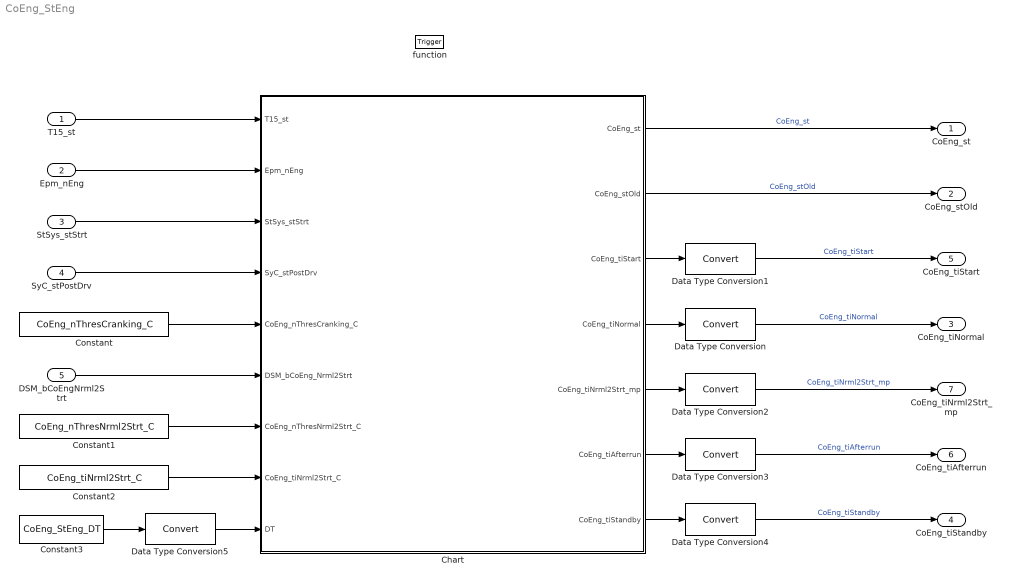
== stateflow chart CoEng_StEng/Chart ==
  state STANDBY
    entry:
    CoEng_st=EngState_conv.COENG_STANDBY;
    CoEng_stOld=EngState_conv.COENG_STANDBY;
    during:
    CoEng_tiStandby=CoEng_tiStandby+DT;
  state READY
    entry:
    CoEng_stOld=CoEng_st;
    CoEng_st=EngState_conv.COENG_READY;
    during:
    CoEng_tiStart=CoEng_tiStart+DT;
  state FINISH
    entry:
    CoEng_stOld=CoEng_st;
    CoEng_st=EngState_conv.COENG_FINISH;
    during:
    CoEng_tiAfterrun=CoEng_tiAfterrun+DT;
  state STOPPING
    entry:
    CoEng_stOld=CoEng_st;
    CoEng_st=EngState_conv.COENG_STOPPING;
    during:
    CoEng_tiAfterrun=CoEng_tiAfterrun+DT;
  state CRANKING
    entry:
    CoEng_stOld=CoEng_st;
    CoEng_st=EngState_conv.COENG_CRANKING;
    during:
    CoEng_tiStart=CoEng_tiStart+DT;
  state RUNNING
    entry:
    CoEng_stOld=CoEng_st;
    CoEng_st=EngState_conv.COENG_RUNNING;
    CoEng_tiNormal=DT;
    during:
    CoEng_tiNormal=CoEng_tiNormal+DT;
    state TEMP2
      during:CoEng_tiNrml2Strt_mp = CoEng_tiNrml2Strt_mp + DT;
    state TEMP
    state TEMP3
      entry:CoEng_tiNrml2Strt_mp=uint32(0);
    (default) -> TEMP
    TEMP3 -> TEMP2 : [Epm_nEng<CoEng_nThresNrml2Strt_C]
    TEMP2 -> TEMP3 : [Epm_nEng>CoEng_nThresNrml2Strt_C]
    TEMP -> TEMP3
  (default) -> STANDBY
  STANDBY -> READY : [T15_st==1]
  FINISH -> STANDBY [order 1] : [SyC_stPostDrv==8]
  FINISH -> READY [order 2] : [T15_st==1]
  STOPPING -> READY [order 1] : [T15_st==1]
  RUNNING -> READY [order 1] : [(Epm_nEng<CoEng_nThresNrml2Strt_C)&&... (CoEng_tiNrml2Strt_mp>CoEng_tiNrml2Strt_C)&&... (DSM_bCoEng_Nrml2Strt==1)]
  READY -> STOPPING [order 2] : [T15_st==0]
  CRANKING -> READY [order 1] : [Epm_nEng==int16(0)]
  READY -> CRANKING [order 1] : [Epm_nEng>CoEng_nThresCranking_C]
  STOPPING -> FINISH [order 2] : [Epm_nEng==int16(0)]
  CRANKING -> STOPPING [order 3] : [T15_st==0]
  CRANKING -> RUNNING [order 2] : [StSys_stStrt==0]
  RUNNING -> STOPPING [order 2] : [T15_st==0]
  data: T15_st input; Epm_nEng input [0..12799]; StSys_stStrt input; SyC_stPostDrv input; CoEng_st output; CoEng_stOld output; CoEng_nThresCranking_C input [0..12799]; DSM_bCoEng_Nrml2Strt input [0..1]; CoEng_nThresNrml2Strt_C input [0..12799]; CoEng_tiNrml2Strt_C input [0..65535]; DT input uint32; CoEng_tiStart output uint32 =uint32(0); CoEng_tiNormal output uint32 =uint32(0); CoEng_tiNrml2Strt_mp output uint32 [0..65535] =uint32(0); CoEng_tiAfterrun output uint32 =uint32(0); CoEng_tiStandby output uint32 =uint32(0)

/*
 * File: CoEng_StEng.c
 *
 * Code generated for Simulink model 'CoEng_StEng'.
 *
 * Model version                  : 1.61
 * Simulink Coder version         : 8.11 (R2016b) 25-Aug-2016
 * C/C++ source code generated on : Wed Jul 01 14:46:16 2020
 *
 * Target selection: ert.tlc
 * Embedded hardware selection: Freescale->32-bit PowerPC
 * Code generation objective: Execution efficiency
 * Validation result: Not run
 */

#include "CoEng_StEng.h"
#include "CoEng_StEng_private.h"

/* Named constants for Chart: '<Root>/Chart' */
#define CoEng_StEng_IN_CRANKING        ((uint8_T)1U)
#define CoEng_StEng_IN_FINISH          ((uint8_T)2U)
#define CoEng_StEng_IN_NO_ACTIVE_CHILD ((uint8_T)0U)
#define CoEng_StEng_IN_READY           ((uint8_T)3U)
#define CoEng_StEng_IN_RUNNING         ((uint8_T)4U)
#define CoEng_StEng_IN_STANDBY         ((uint8_T)5U)
#define CoEng_StEng_IN_STOPPING        ((uint8_T)6U)
#define CoEng_StEng_IN_TEMP            ((uint8_T)1U)
#define CoEng_StEng_IN_TEMP2           ((uint8_T)2U)
#define CoEng_StEng_IN_TEMP3           ((uint8_T)3U)

/* Exported block signals */
EngTime_ms CoEng_tiNormal;             /* '<Root>/Data Type Conversion' */
EngTime_ms CoEng_tiStandby;            /* '<Root>/Data Type Conversion4' */
EngTime_ms CoEng_tiStart;              /* '<Root>/Data Type Conversion1' */
EngTime_ms CoEng_tiAfterrun;           /* '<Root>/Data Type Conversion3' */
EngTime_ms CoEng_tiNrml2Strt_mp;       /* '<Root>/Data Type Conversion2' */
EngState_conv CoEng_st;                /* '<Root>/Chart' */
EngState_conv CoEng_stOld;             /* '<Root>/Chart' */

/* Block signals (auto storage) */
B_CoEng_StEng_T CoEng_StEng_B;

/* Block states (auto storage) */
DW_CoEng_StEng_T CoEng_StEng_DW;

/* External inputs (root inport signals with auto storage) */
ExtU_CoEng_StEng_T CoEng_StEng_U;
boolean_T uMultiWordGt(const uint32_T u1[], const uint32_T u2[], int32_T n)
{
  return uMultiWordCmp(u1, u2, n) > 0;
}

int32_T uMultiWordCmp(const uint32_T u1[], const uint32_T u2[], int32_T n)
{
  int32_T y;
  uint32_T u1i;
  uint32_T u2i;
  int32_T i;
  y = 0;
  i = n;
  while ((y == 0) && (i > 0)) {
    i--;
    u1i = u1[i];
    u2i = u2[i];
    if (u1i != u2i) {
      y = u1i > u2i ? 1 : -1;
    }
  }

  return y;
}

void MultiWordUnsignedWrap(const uint32_T u1[], int32_T n1, uint32_T n2,
  uint32_T y[])
{
  int32_T n1m1;
  int32_T i;
  n1m1 = n1 - 1;
  for (i = 0; i < n1m1; i++) {
    y[i] = u1[i];
  }

  y[n1m1] = ((1U << (32U - n2)) - 1U) & u1[n1m1];
}

void uMultiWord2MultiWord(const uint32_T u1[], int32_T n1, uint32_T y[], int32_T
  n)
{
  int32_T nm;
  int32_T i;
  nm = n1 < n ? n1 : n;
  for (i = 0; i < nm; i++) {
    y[i] = u1[i];
  }

  if (n > n1) {
    for (i = nm; i < n; i++) {
      y[i] = 0U;
    }
  }
}

void uMultiWordMul(const uint32_T u1[], int32_T n1, const uint32_T u2[], int32_T
                   n2, uint32_T y[], int32_T n)
{
  int32_T i;
  int32_T j;
  int32_T k;
  int32_T nj;
  uint32_T u1i;
  uint32_T yk;
  uint32_T a1;
  uint32_T a0;
  uint32_T b1;
  uint32_T w10;
  uint32_T w01;
  uint32_T cb;

  /* Initialize output to zero */
  for (k = 0; k < n; k++) {
    y[k] = 0U;
  }

  for (i = 0; i < n1; i++) {
    cb = 0U;
    u1i = u1[i];
    a1 = u1i >> 16U;
    a0 = u1i & 65535U;
    k = n - i;
    nj = n2 <= k ? n2 : k;
    k = i;
    for (j = 0; j < nj; j++) {
      yk = y[k];
      u1i = u2[j];
      b1 = u1i >> 16U;
      u1i &= 65535U;
      w10 = a1 * u1i;
      w01 = a0 * b1;
      yk += cb;
      cb = (uint32_T)(yk < cb);
      u1i *= a0;
      yk += u1i;
      cb += (yk < u1i);
      u1i = w10 << 16U;
      yk += u1i;
      cb += (yk < u1i);
      u1i = w01 << 16U;
      yk += u1i;
      cb += (yk < u1i);
      y[k] = yk;
      cb += w10 >> 16U;
      cb += w01 >> 16U;
      cb += a1 * b1;
      k++;
    }

    if (k < n) {
      y[k] = cb;
    }
  }
}

void uMultiWordShl(const uint32_T u1[], int32_T n1, uint32_T n2, uint32_T y[],
                   int32_T n)
{
  int32_T nb;
  int32_T nc;
  int32_T i;
  uint32_T ys;
  uint32_T u1i;
  uint32_T yi;
  uint32_T nr;
  uint32_T nl;
  nb = (int32_T)(n2 >> 5);
  ys = (u1[n1 - 1] & 2147483648U) != 0U ? MAX_uint32_T : 0U;
  nc = nb > n ? n : nb;
  u1i = 0U;
  for (i = 0; i < nc; i++) {
    y[i] = 0U;
  }

  if (nb < n) {
    nl = n2 - ((uint32_T)nb << 5);
    nb += n1;
    if (nb > n) {
      nb = n;
    }

    nb -= i;
    if (nl > 0U) {
      nr = 32U - nl;
      for (nc = 0; nc < nb; nc++) {
        yi = u1i >> nr;
        u1i = u1[nc];
        y[i] = u1i << nl | yi;
        i++;
      }

      if (i < n) {
        y[i] = u1i >> nr | ys << nl;
        i++;
      }
    } else {
      for (nc = 0; nc < nb; nc++) {
        y[i] = u1[nc];
        i++;
      }
    }
  }

  while (i < n) {
    y[i] = ys;
    i++;
  }
}

void uLong2MultiWord(uint32_T u, uint32_T y[], int32_T n)
{
  int32_T i;
  y[0] = u;
  for (i = 1; i < n; i++) {
    y[i] = 0U;
  }
}

void mul_wide_u32(uint32_T in0, uint32_T in1, uint32_T *ptrOutBitsHi, uint32_T
                  *ptrOutBitsLo)
{
  uint32_T outBitsLo;
  uint32_T in0Lo;
  uint32_T in0Hi;
  uint32_T in1Lo;
  uint32_T in1Hi;
  uint32_T productHiLo;
  uint32_T productLoHi;
  in0Hi = in0 >> 16U;
  in0Lo = in0 & 65535U;
  in1Hi = in1 >> 16U;
  in1Lo = in1 & 65535U;
  productHiLo = in0Hi * in1Lo;
  productLoHi = in0Lo * in1Hi;
  in0Lo *= in1Lo;
  in1Lo = 0U;
  outBitsLo = (productLoHi << 16U) + in0Lo;
  if (outBitsLo < in0Lo) {
    in1Lo = 1U;
  }

  in0Lo = outBitsLo;
  outBitsLo += productHiLo << 16U;
  if (outBitsLo < in0Lo) {
    in1Lo++;
  }

  *ptrOutBitsHi = (((productLoHi >> 16U) + (productHiLo >> 16U)) + in0Hi * in1Hi)
    + in1Lo;
  *ptrOutBitsLo = outBitsLo;
}

uint32_T mul_u32_hiSR(uint32_T a, uint32_T b, uint32_T aShift)
{
  uint32_T u32_chi;
  uint32_T u32_clo;
  mul_wide_u32(a, b, &u32_chi, &u32_clo);
  return u32_chi >> aShift;
}

/* Model step function */
void CoEng_StEng_step(void)
{
  uint32_T qY;
  uint96m_T tmp;
  uint96m_T tmp_0;
  uint64m_T tmp_1;
  uint96m_T tmp_2;
  uint96m_T tmp_3;

  /* Chart: '<Root>/Chart' incorporates:
   *  Constant: '<Root>/Constant'
   *  Constant: '<Root>/Constant1'
   *  Constant: '<Root>/Constant2'
   *  Constant: '<Root>/Constant3'
   *  Inport: '<Root>/DSM_bCoEngNrml2Strt'
   *  Inport: '<Root>/Epm_nEng'
   *  Inport: '<Root>/StSys_stStrt'
   *  Inport: '<Root>/SyC_stPostDrv'
   *  Inport: '<Root>/T15_st'
   */
  /* Gateway: Chart */
  /* During: Chart */
  if (CoEng_StEng_DW.is_active_c3_CoEng_StEng == 0U) {
    /* Entry: Chart */
    CoEng_StEng_DW.is_active_c3_CoEng_StEng = 1U;

    /* Entry Internal: Chart */
    /* Transition: '<S1>:2' */
    CoEng_StEng_DW.is_c3_CoEng_StEng = CoEng_StEng_IN_STANDBY;

    /* Entry 'STANDBY': '<S1>:1' */
    CoEng_st = COENG_STANDBY;
    CoEng_stOld = COENG_STANDBY;
  } else {
    switch (CoEng_StEng_DW.is_c3_CoEng_StEng) {
     case CoEng_StEng_IN_CRANKING:
      /* During 'CRANKING': '<S1>:5' */
      if (CoEng_StEng_U.Epm_nEng == 0) {
        /* Transition: '<S1>:11' */
        CoEng_StEng_DW.is_c3_CoEng_StEng = CoEng_StEng_IN_READY;

        /* Entry 'READY': '<S1>:4' */
        CoEng_stOld = CoEng_st;
        CoEng_st = COENG_READY;
      } else if (CoEng_StEng_U.StSys_stStrt == 0) {
        /* Transition: '<S1>:12' */
        CoEng_StEng_DW.is_c3_CoEng_StEng = CoEng_StEng_IN_RUNNING;

        /* Entry 'RUNNING': '<S1>:6' */
        CoEng_stOld = CoEng_st;
        CoEng_st = COENG_RUNNING;
        CoEng_StEng_B.CoEng_tiNormal_h = 10U;

        /* Entry Internal 'RUNNING': '<S1>:6' */
        /* Transition: '<S1>:14' */
        CoEng_StEng_DW.is_RUNNING = CoEng_StEng_IN_TEMP;
      } else if (CoEng_StEng_U.T15_st == 0) {
        /* Transition: '<S1>:23' */
        CoEng_StEng_DW.is_c3_CoEng_StEng = CoEng_StEng_IN_STOPPING;

        /* Entry 'STOPPING': '<S1>:7' */
        CoEng_stOld = CoEng_st;
        CoEng_st = COENG_STOPPING;
      } else {
        qY = CoEng_StEng_B.CoEng_tiStart_k + 10U;
        if (qY < CoEng_StEng_B.CoEng_tiStart_k) {
          qY = MAX_uint32_T;
        }

        CoEng_StEng_B.CoEng_tiStart_k = qY;
      }
      break;

     case CoEng_StEng_IN_FINISH:
      /* During 'FINISH': '<S1>:3' */
      if (CoEng_StEng_U.SyC_stPostDrv == 8) {
        /* Transition: '<S1>:27' */
        CoEng_StEng_DW.is_c3_CoEng_StEng = CoEng_StEng_IN_STANDBY;

        /* Entry 'STANDBY': '<S1>:1' */
        CoEng_st = COENG_STANDBY;
        CoEng_stOld = COENG_STANDBY;
      } else if (CoEng_StEng_U.T15_st == 1) {
        /* Transition: '<S1>:29' */
        CoEng_StEng_DW.is_c3_CoEng_StEng = CoEng_StEng_IN_READY;

        /* Entry 'READY': '<S1>:4' */
        CoEng_stOld = CoEng_st;
        CoEng_st = COENG_READY;
      } else {
        qY = CoEng_StEng_B.CoEng_tiAfterrun_g + 10U;
        if (qY < CoEng_StEng_B.CoEng_tiAfterrun_g) {
          qY = MAX_uint32_T;
        }

        CoEng_StEng_B.CoEng_tiAfterrun_g = qY;
      }
      break;

     case CoEng_StEng_IN_READY:
      /* During 'READY': '<S1>:4' */
      if (CoEng_StEng_U.Epm_nEng > CoEng_nThresCranking_C) {
        /* Transition: '<S1>:10' */
        CoEng_StEng_DW.is_c3_CoEng_StEng = CoEng_StEng_IN_CRANKING;

        /* Entry 'CRANKING': '<S1>:5' */
        CoEng_stOld = CoEng_st;
        CoEng_st = COENG_CRANKING;
      } else if (CoEng_StEng_U.T15_st == 0) {
        /* Transition: '<S1>:25' */
        CoEng_StEng_DW.is_c3_CoEng_StEng = CoEng_StEng_IN_STOPPING;

        /* Entry 'STOPPING': '<S1>:7' */
        CoEng_stOld = CoEng_st;
        CoEng_st = COENG_STOPPING;
      } else {
        qY = CoEng_StEng_B.CoEng_tiStart_k + 10U;
        if (qY < CoEng_StEng_B.CoEng_tiStart_k) {
          qY = MAX_uint32_T;
        }

        CoEng_StEng_B.CoEng_tiStart_k = qY;
      }
      break;

     case CoEng_StEng_IN_RUNNING:
      /* During 'RUNNING': '<S1>:6' */
      qY = 3435973837U;
      uMultiWordMul(&CoEng_StEng_B.CoEng_tiNrml2Strt_mp_l, 1, &qY, 1,
                    &tmp_1.chunks[0U], 2);
      uMultiWord2MultiWord(&tmp_1.chunks[0U], 2, &tmp_0.chunks[0U], 3);
      MultiWordUnsignedWrap(&tmp_0.chunks[0U], 3, 29U, &tmp.chunks[0U]);
      uLong2MultiWord(CoEng_tiNrml2Strt_C, &tmp_3.chunks[0U], 3);
      uMultiWordShl(&tmp_3.chunks[0U], 3, 35U, &tmp_2.chunks[0U], 3);
      MultiWordUnsignedWrap(&tmp_2.chunks[0U], 3, 29U, &tmp_0.chunks[0U]);
      if ((CoEng_StEng_U.Epm_nEng < CoEng_nThresNrml2Strt_C) && uMultiWordGt
          (&tmp.chunks[0U], &tmp_0.chunks[0U], 3) &&
          CoEng_StEng_U.DSM_bCoEngNrml2Strt) {
        /* Transition: '<S1>:21' */
        /* Exit Internal 'RUNNING': '<S1>:6' */
        CoEng_StEng_DW.is_RUNNING = CoEng_StEng_IN_NO_ACTIVE_CHILD;
        CoEng_StEng_DW.is_c3_CoEng_StEng = CoEng_StEng_IN_READY;

        /* Entry 'READY': '<S1>:4' */
        CoEng_stOld = CoEng_st;
        CoEng_st = COENG_READY;
      } else if (CoEng_StEng_U.T15_st == 0) {
        /* Transition: '<S1>:22' */
        /* Exit Internal 'RUNNING': '<S1>:6' */
        CoEng_StEng_DW.is_RUNNING = CoEng_StEng_IN_NO_ACTIVE_CHILD;
        CoEng_StEng_DW.is_c3_CoEng_StEng = CoEng_StEng_IN_STOPPING;

        /* Entry 'STOPPING': '<S1>:7' */
        CoEng_stOld = CoEng_st;
        CoEng_st = COENG_STOPPING;
      } else {
        qY = CoEng_StEng_B.CoEng_tiNormal_h + 10U;
        if (qY < CoEng_StEng_B.CoEng_tiNormal_h) {
          qY = MAX_uint32_T;
        }

        CoEng_StEng_B.CoEng_tiNormal_h = qY;
        switch (CoEng_StEng_DW.is_RUNNING) {
         case CoEng_StEng_IN_TEMP:
          /* During 'TEMP': '<S1>:13' */
          /* Transition: '<S1>:18' */
          CoEng_StEng_DW.is_RUNNING = CoEng_StEng_IN_TEMP3;

          /* Entry 'TEMP3': '<S1>:15' */
          CoEng_StEng_B.CoEng_tiNrml2Strt_mp_l = 0U;
          break;

         case CoEng_StEng_IN_TEMP2:
          /* During 'TEMP2': '<S1>:16' */
          if (CoEng_StEng_U.Epm_nEng > CoEng_nThresNrml2Strt_C) {
            /* Transition: '<S1>:20' */
            CoEng_StEng_DW.is_RUNNING = CoEng_StEng_IN_TEMP3;

            /* Entry 'TEMP3': '<S1>:15' */
            CoEng_StEng_B.CoEng_tiNrml2Strt_mp_l = 0U;
          } else {
            qY = CoEng_StEng_B.CoEng_tiNrml2Strt_mp_l + 10U;
            if (qY < CoEng_StEng_B.CoEng_tiNrml2Strt_mp_l) {
              qY = MAX_uint32_T;
            }

            CoEng_StEng_B.CoEng_tiNrml2Strt_mp_l = qY;
          }
          break;

         default:
          /* During 'TEMP3': '<S1>:15' */
          if (CoEng_StEng_U.Epm_nEng < CoEng_nThresNrml2Strt_C) {
            /* Transition: '<S1>:19' */
            CoEng_StEng_DW.is_RUNNING = CoEng_StEng_IN_TEMP2;
          }
          break;
        }
      }
      break;

     case CoEng_StEng_IN_STANDBY:
      /* During 'STANDBY': '<S1>:1' */
      if (CoEng_StEng_U.T15_st == 1) {
        /* Transition: '<S1>:9' */
        CoEng_StEng_DW.is_c3_CoEng_StEng = CoEng_StEng_IN_READY;

        /* Entry 'READY': '<S1>:4' */
        CoEng_stOld = CoEng_st;
        CoEng_st = COENG_READY;
      } else {
        qY = CoEng_StEng_B.CoEng_tiStandby_n + 10U;
        if (qY < CoEng_StEng_B.CoEng_tiStandby_n) {
          qY = MAX_uint32_T;
        }

        CoEng_StEng_B.CoEng_tiStandby_n = qY;
      }
      break;

     default:
      /* During 'STOPPING': '<S1>:7' */
      if (CoEng_StEng_U.T15_st == 1) {
        /* Transition: '<S1>:24' */
        CoEng_StEng_DW.is_c3_CoEng_StEng = CoEng_StEng_IN_READY;

        /* Entry 'READY': '<S1>:4' */
        CoEng_stOld = CoEng_st;
        CoEng_st = COENG_READY;
      } else if (CoEng_StEng_U.Epm_nEng == 0) {
        /* Transition: '<S1>:26' */
        CoEng_StEng_DW.is_c3_CoEng_StEng = CoEng_StEng_IN_FINISH;

        /* Entry 'FINISH': '<S1>:3' */
        CoEng_stOld = CoEng_st;
        CoEng_st = COENG_FINISH;
      } else {
        qY = CoEng_StEng_B.CoEng_tiAfterrun_g + 10U;
        if (qY < CoEng_StEng_B.CoEng_tiAfterrun_g) {
          qY = MAX_uint32_T;
        }

        CoEng_StEng_B.CoEng_tiAfterrun_g = qY;
      }
      break;
    }
  }

  /* End of Chart: '<Root>/Chart' */

  /* DataTypeConversion: '<Root>/Data Type Conversion' */
  CoEng_tiNormal = mul_u32_hiSR(CoEng_StEng_B.CoEng_tiNormal_h, 3435973837U, 3U);

  /* DataTypeConversion: '<Root>/Data Type Conversion4' */
  CoEng_tiStandby = mul_u32_hiSR(CoEng_StEng_B.CoEng_tiStandby_n, 3435973837U,
    3U);

  /* DataTypeConversion: '<Root>/Data Type Conversion1' */
  CoEng_tiStart = mul_u32_hiSR(CoEng_StEng_B.CoEng_tiStart_k, 3435973837U, 3U);

  /* DataTypeConversion: '<Root>/Data Type Conversion3' */
  CoEng_tiAfterrun = mul_u32_hiSR(CoEng_StEng_B.CoEng_tiAfterrun_g, 3435973837U,
    3U);

  /* DataTypeConversion: '<Root>/Data Type Conversion2' */
  CoEng_tiNrml2Strt_mp = mul_u32_hiSR(CoEng_StEng_B.CoEng_tiNrml2Strt_mp_l,
    3435973837U, 3U);
}
